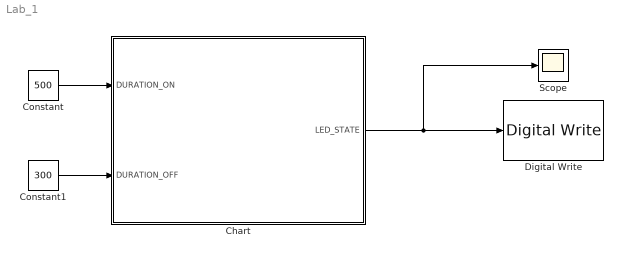
== stateflow chart Lab_1/Chart ==
  state LED_ON
    entry:
    LED_STATE= true;
  state LED_OFF
    entry:
    LED_STATE= false;
  (default) -> LED_ON
  LED_ON -> LED_OFF : after(DURATION_ON, msec)
  LED_OFF -> LED_ON : after(DURATION_OFF, msec)
  data: DURATION_ON input int16; DURATION_OFF input int16; LED_STATE output boolean

/*
 * Academic License - for use in teaching, academic research, and meeting
 * course requirements at degree granting institutions only.  Not for
 * government, commercial, or other organizational use.
 *
 * File: Lab_1.c
 *
 * Code generated for Simulink model 'Lab_1'.
 *
 * Model version                  : 1.1
 * Simulink Coder version         : 9.3 (R2020a) 18-Nov-2019
 * C/C++ source code generated on : Mon Oct  5 17:33:06 2020
 *
 * Target selection: ert.tlc
 * Embedded hardware selection: ARM Compatible->ARM Cortex
 * Code generation objectives: Unspecified
 * Validation result: Not run
 */

#include "Lab_1.h"
#include "Lab_1_private.h"

/* Named constants for Chart: '<Root>/Chart' */
#define Lab_1_IN_LED_OFF               ((uint8_T)1U)
#define Lab_1_IN_LED_ON                ((uint8_T)2U)

/* Block states (default storage) */
DW_Lab_1_T Lab_1_DW;

/* Real-time model */
RT_MODEL_Lab_1_T Lab_1_M_;
RT_MODEL_Lab_1_T *const Lab_1_M = &Lab_1_M_;

/* Forward declaration for local functions */
static void Lab_1_SystemCore_release(const freedomk64f_DigitalWrite_Lab__T *obj);
static void Lab_1_SystemCore_delete(const freedomk64f_DigitalWrite_Lab__T *obj);
static void matlabCodegenHandle_matlabCodeg(freedomk64f_DigitalWrite_Lab__T *obj);
static void Lab_1_SystemCore_release(const freedomk64f_DigitalWrite_Lab__T *obj)
{
  if ((obj->isInitialized == 1) && obj->isSetupComplete) {
    MW_digitalIO_close(obj->MW_DIGITALIO_HANDLE);
  }
}

static void Lab_1_SystemCore_delete(const freedomk64f_DigitalWrite_Lab__T *obj)
{
  Lab_1_SystemCore_release(obj);
}

static void matlabCodegenHandle_matlabCodeg(freedomk64f_DigitalWrite_Lab__T *obj)
{
  if (!obj->matlabCodegenIsDeleted) {
    obj->matlabCodegenIsDeleted = true;
    Lab_1_SystemCore_delete(obj);
  }
}

/* Model step function */
void Lab_1_step(void)
{
  boolean_T rtb_LED_STATE;

  /* Chart: '<Root>/Chart' incorporates:
   *  Constant: '<Root>/Constant'
   *  Constant: '<Root>/Constant1'
   */
  if (Lab_1_DW.temporalCounter_i1 < 32767U) {
    Lab_1_DW.temporalCounter_i1++;
  }

  if (Lab_1_DW.is_active_c3_Lab_1 == 0U) {
    Lab_1_DW.is_active_c3_Lab_1 = 1U;
    Lab_1_DW.is_c3_Lab_1 = Lab_1_IN_LED_ON;
    Lab_1_DW.temporalCounter_i1 = 0U;
    rtb_LED_STATE = true;
  } else if (Lab_1_DW.is_c3_Lab_1 == Lab_1_IN_LED_OFF) {
    rtb_LED_STATE = false;
    if (Lab_1_DW.temporalCounter_i1 >= Lab_1_P.Constant1_Value) {
      Lab_1_DW.is_c3_Lab_1 = Lab_1_IN_LED_ON;
      Lab_1_DW.temporalCounter_i1 = 0U;
      rtb_LED_STATE = true;
    }
  } else {
    /* case IN_LED_ON: */
    rtb_LED_STATE = true;
    if (Lab_1_DW.temporalCounter_i1 >= Lab_1_P.Constant_Value) {
      Lab_1_DW.is_c3_Lab_1 = Lab_1_IN_LED_OFF;
      Lab_1_DW.temporalCounter_i1 = 0U;
      rtb_LED_STATE = false;
    }
  }

  /* End of Chart: '<Root>/Chart' */

  /* MATLABSystem: '<Root>/Digital Write' */
  MW_digitalIO_write(Lab_1_DW.obj.MW_DIGITALIO_HANDLE, rtb_LED_STATE);
}
